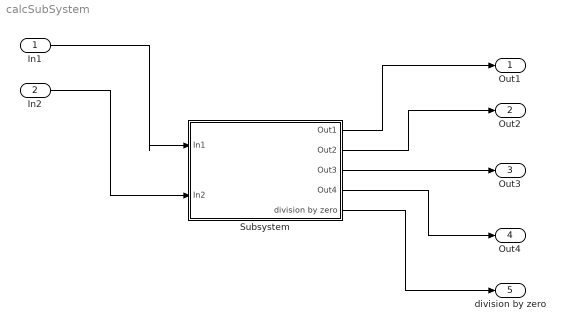
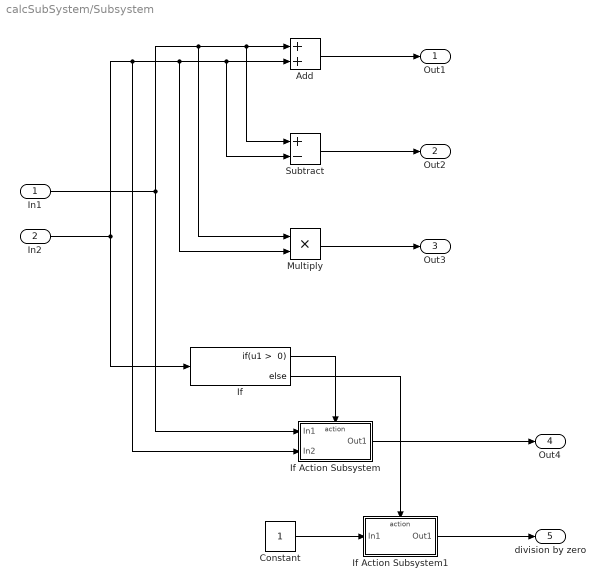
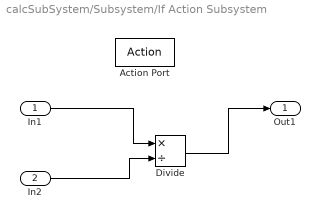
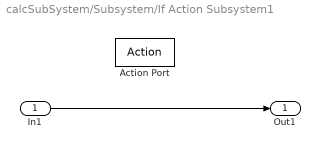
/*
 * File: calcSubSystem.c
 *
 * Code generated for Simulink model 'calcSubSystem'.
 *
 * Model version                  : 1.2
 * Simulink Coder version         : 8.14 (R2018a) 06-Feb-2018
 * C/C++ source code generated on : Tue Apr  5 16:16:12 2022
 *
 * Target selection: ert.tlc
 * Embedded hardware selection: Intel->x86-64 (Windows64)
 * Code generation objectives: Unspecified
 * Validation result: Not run
 */

#include "calcSubSystem.h"
#include "calcSubSystem_private.h"

/* External inputs (root inport signals with default storage) */
ExtU_calcSubSystem_T calcSubSystem_U;

/* External outputs (root outports fed by signals with default storage) */
ExtY_calcSubSystem_T calcSubSystem_Y;

/* Real-time model */
RT_MODEL_calcSubSystem_T calcSubSystem_M_;
RT_MODEL_calcSubSystem_T *const calcSubSystem_M = &calcSubSystem_M_;

/* Model step function */
void calcSubSystem_step(void)
{
  /* Outport: '<Root>/Out1' incorporates:
   *  Inport: '<Root>/In1'
   *  Inport: '<Root>/In2'
   *  Sum: '<S1>/Add'
   */
  calcSubSystem_Y.Out1 = calcSubSystem_U.In1 + calcSubSystem_U.In2;

  /* Outport: '<Root>/Out2' incorporates:
   *  Inport: '<Root>/In1'
   *  Inport: '<Root>/In2'
   *  Sum: '<S1>/Subtract'
   */
  calcSubSystem_Y.Out2 = calcSubSystem_U.In1 - calcSubSystem_U.In2;

  /* Outport: '<Root>/Out3' incorporates:
   *  Inport: '<Root>/In1'
   *  Inport: '<Root>/In2'
   *  Product: '<S1>/Multiply'
   */
  calcSubSystem_Y.Out3 = calcSubSystem_U.In1 * calcSubSystem_U.In2;

  /* If: '<S1>/If' incorporates:
   *  Inport: '<Root>/In2'
   */
  if (calcSubSystem_U.In2 > 0.0) {
    /* Outputs for IfAction SubSystem: '<S1>/If Action Subsystem' incorporates:
     *  ActionPort: '<S2>/Action Port'
     */
    /* Outport: '<Root>/Out4' incorporates:
     *  Inport: '<Root>/In1'
     *  Product: '<S2>/Divide'
     */
    calcSubSystem_Y.Out4 = calcSubSystem_U.In1 / calcSubSystem_U.In2;

    /* End of Outputs for SubSystem: '<S1>/If Action Subsystem' */
  } else {
    /* Outputs for IfAction SubSystem: '<S1>/If Action Subsystem1' incorporates:
     *  ActionPort: '<S3>/Action Port'
     */
    /* Outport: '<Root>/division by zero' incorporates:
     *  Constant: '<S1>/Constant'
     *  Inport: '<S3>/In1'
     */
    calcSubSystem_Y.divisionbyzero = 1.0;

    /* End of Outputs for SubSystem: '<S1>/If Action Subsystem1' */
  }

  /* End of If: '<S1>/If' */
}
